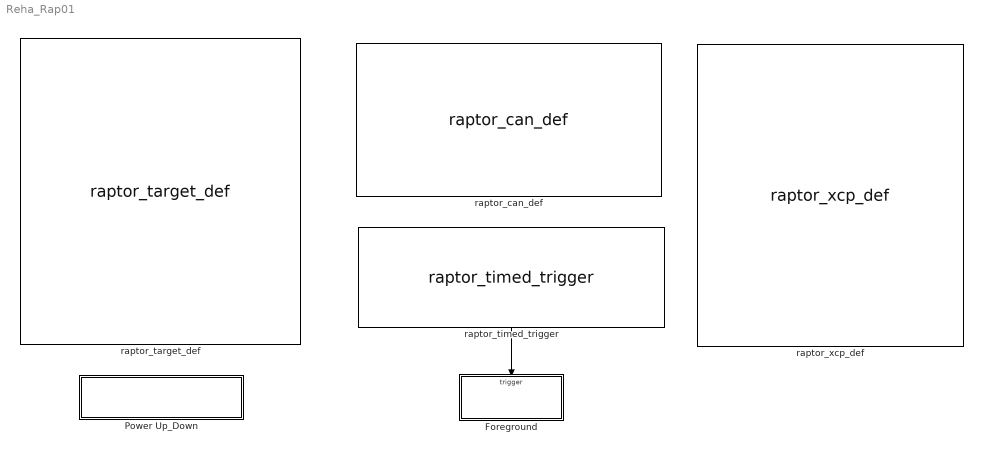
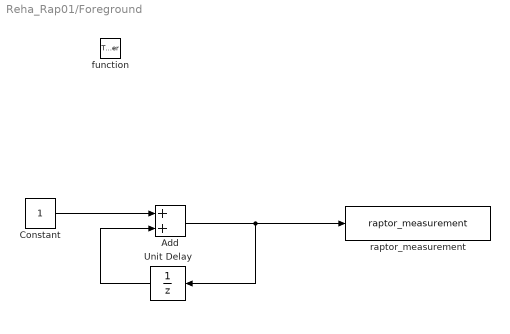
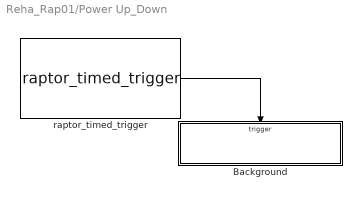
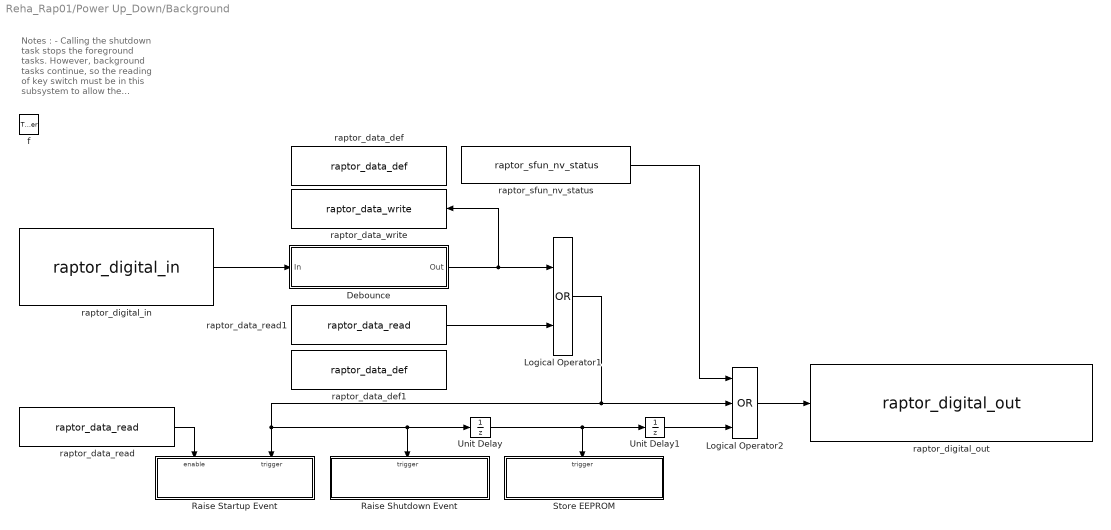
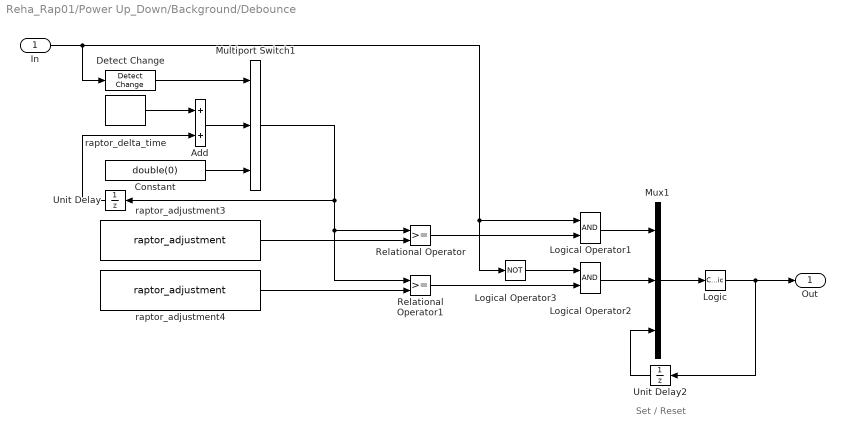
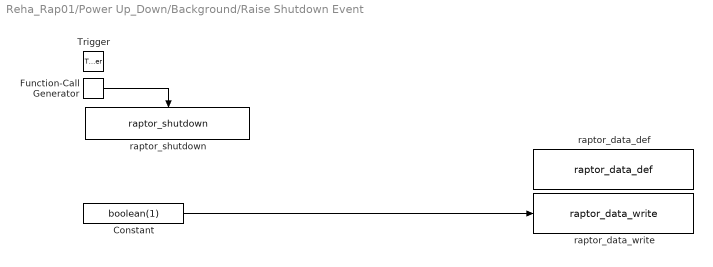
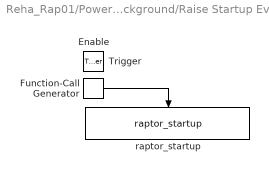
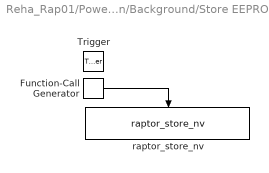
/*
 * File: Reha_Rap01.c
 *
 * Code generated for Simulink model 'Reha_Rap01'.
 *
 * Model version                  : 9.2
 * Simulink Coder version         : 9.6 (R2021b) 14-May-2021
 * C/C++ source code generated on : Thu Sep  8 15:37:03 2022
 *
 * Target selection: raptor.tlc
 * Embedded hardware selection: Infineon->TriCore
 * Emulation hardware selection:
 *    Differs from embedded hardware (MATLAB Host)
 * Code generation objectives: Unspecified
 * Validation result: Not run
 */

#include "Reha_Rap01.h"
#include "Reha_Rap01_private.h"

/* Block states (default storage) */
D_Work_Reha_Rap01 Reha_Rap01_DWork;

/* Previous zero-crossings (trigger) states */
PrevZCSigStates_Reha_Rap01 Reha_Rap01_PrevZCSigState;

/* System initialize for function-call system: '<S2>/Background' */
void Reha_Rap01_Background_Init(void)
{
  /* Start for S-Function (raptor_sfun_digital_in): '<S4>/raptor_digital_in' */

  /* S-Function Block: WAKE_INPUT1 */
  {
  }

  /* Start for S-Function (raptor_sfun_digital_out): '<S4>/raptor_digital_out' */

  /* S-Function Block: POWER_HOLD */
  {
  }

  /* InitializeConditions for S-Function (raptor_sfun_delta_time): '<S5>/raptor_delta_time' */
  Reha_Rap01_DWork.raptor_delta_time_DWORK1 = ticks();

  /* InitializeConditions for UnitDelay: '<S5>/Unit Delay2' */
  Reha_Rap01_DWork.UnitDelay2_DSTATE = true;
}

/* System reset for function-call system: '<S2>/Background' */
void Reha_Rap01_Background_Reset(void)
{
  /* InitializeConditions for S-Function (raptor_sfun_delta_time): '<S5>/raptor_delta_time' */
  Reha_Rap01_DWork.raptor_delta_time_DWORK1 = ticks();

  /* InitializeConditions for UnitDelay: '<S5>/Unit Delay2' */
  Reha_Rap01_DWork.UnitDelay2_DSTATE = true;
}

/* Output and update for function-call system: '<S2>/Background' */
void Reha_Rap01_Background(void)
{
  /* local block i/o variables */
  real_T rtb_raptor_delta_time;
  boolean_T rtb_raptor_digital_in;
  boolean_T rtb_raptor_sfun_nv_status;
  real_T rtb_MultiportSwitch1;
  boolean_T rtb_Logic;
  boolean_T rtb_LogicalOperator1_h;
  boolean_T rtb_LogicalOperator2;
  boolean_T rtb_LogicalOperator2_c;

  /* S-Function (raptor_sfun_digital_in): '<S4>/raptor_digital_in' */
  /* S-Function Block: WAKE_INPUT1 */
  {
    rtb_raptor_digital_in = swsh_ignswSt();
  }

  /* S-Function (raptor_sfun_delta_time): '<S5>/raptor_delta_time' */
  {
    rtb_raptor_delta_time = (GetDeltaTime_ms
      (&Reha_Rap01_DWork.raptor_delta_time_DWORK1) * 0.001f);
  }

  /* MultiPortSwitch: '<S5>/Multiport Switch1' incorporates:
   *  Constant: '<S5>/Constant'
   *  RelationalOperator: '<S9>/FixPt Relational Operator'
   *  Sum: '<S5>/Add'
   *  UnitDelay: '<S5>/Unit Delay'
   *  UnitDelay: '<S9>/Delay Input1'
   */
  if (rtb_raptor_digital_in == Reha_Rap01_DWork.DelayInput1_DSTATE) {
    rtb_MultiportSwitch1 = rtb_raptor_delta_time +
      Reha_Rap01_DWork.UnitDelay_DSTATE_b;
  } else {
    rtb_MultiportSwitch1 = 0.0;
  }

  /* End of MultiPortSwitch: '<S5>/Multiport Switch1' */
  /* S-Function (raptor_sfun_nv_status): '<S4>/raptor_sfun_nv_status' incorporates:
   *  UnitDelay: '<S5>/Unit Delay2'
   */
  rtb_raptor_sfun_nv_status = Reha_Rap01_DWork.UnitDelay2_DSTATE;

  /* CombinatorialLogic: '<S5>/Logic' incorporates:
   *  Logic: '<S5>/Logical Operator1'
   *  Logic: '<S5>/Logical Operator2'
   *  Logic: '<S5>/Logical Operator3'
   *  RelationalOperator: '<S5>/Relational Operator'
   *  RelationalOperator: '<S5>/Relational Operator1'
   *  S-Function (raptor_sfun_adjustment): '<S5>/raptor_adjustment3'
   *  S-Function (raptor_sfun_adjustment): '<S5>/raptor_adjustment4'
   */
  rtb_Logic = Reha_Rap01_ConstP.Logic_table[((((uint32_T)(rtb_raptor_digital_in &&
    (rtb_MultiportSwitch1 >= (KeySwHiTimeThr_Data()))) << 1) +
    ((!rtb_raptor_digital_in) && (rtb_MultiportSwitch1 >= (KeySwLoTimeThr_Data()))))
    << 1) + rtb_raptor_sfun_nv_status];

  /* Logic: '<S4>/Logical Operator1' incorporates:
   *  S-Function (raptor_sfun_data_read): '<S4>/raptor_data_read1'
   */
  rtb_LogicalOperator1_h = (rtb_Logic || KeepModuleOn_Data());

  /* Outputs for Triggered SubSystem: '<S4>/Raise Shutdown Event' incorporates:
   *  TriggerPort: '<S6>/Trigger'
   */
  if ((!rtb_LogicalOperator1_h) &&
      (Reha_Rap01_PrevZCSigState.RaiseShutdownEvent_Trig_ZCE != ZERO_ZCSIG)) {
    /* S-Function (raptor_sfun_data_write): '<S6>/raptor_data_write' incorporates:
     *  Constant: '<S6>/Constant'
     */
    FgndTasksStopped_Data() = true;

    /* S-Function (fcgen): '<S6>/Function-Call Generator' incorporates:
     *  SubSystem: '<S6>/raptor_shutdown'
     */
    /* S-Function (raptor_sfun_shutdown): '<S10>/raptor_data_write' */
    /* S-Function Block */
    {
      extern void App_Shutdown(void);
      App_Shutdown();
    }

    /* End of Outputs for S-Function (fcgen): '<S6>/Function-Call Generator' */
  }

  Reha_Rap01_PrevZCSigState.RaiseShutdownEvent_Trig_ZCE = rtb_LogicalOperator1_h;

  /* End of Outputs for SubSystem: '<S4>/Raise Shutdown Event' */
  /* Outputs for Enabled and Triggered SubSystem: '<S4>/Raise Startup Event' incorporates:
   *  EnablePort: '<S7>/Enable'
   *  TriggerPort: '<S7>/Trigger'
   */
  if (FgndTasksStopped_Data()) {
    if (rtb_LogicalOperator1_h &&
        (Reha_Rap01_PrevZCSigState.RaiseStartupEvent_Trig_ZCE != POS_ZCSIG)) {
      /* S-Function (fcgen): '<S7>/Function-Call Generator' incorporates:
       *  SubSystem: '<S7>/raptor_startup'
       */
      /* S-Function (raptor_sfun_startup): '<S11>/raptor_data_write' */
      /* S-Function Block */
      {
        extern void App_Startup(void);
        App_Startup();
      }

      /* End of Outputs for S-Function (fcgen): '<S7>/Function-Call Generator' */
    }

    /* Outputs for Triggered SubSystem: '<S4>/Raise Shutdown Event' incorporates:
     *  TriggerPort: '<S6>/Trigger'
     */
    Reha_Rap01_PrevZCSigState.RaiseStartupEvent_Trig_ZCE =
      rtb_LogicalOperator1_h;

    /* End of Outputs for SubSystem: '<S4>/Raise Shutdown Event' */
  }

  /* End of S-Function (raptor_sfun_data_read): '<S4>/raptor_data_read' */

  /* Outputs for Triggered SubSystem: '<S4>/Raise Shutdown Event' incorporates:
   *  TriggerPort: '<S6>/Trigger'
   */
  Reha_Rap01_PrevZCSigState.RaiseStartupEvent_Trig_ZCE = rtb_LogicalOperator1_h;

  /* End of Outputs for SubSystem: '<S4>/Raise Shutdown Event' */
  /* End of Outputs for SubSystem: '<S4>/Raise Startup Event' */

  /* UnitDelay: '<S4>/Unit Delay' */
  rtb_LogicalOperator2_c = Reha_Rap01_DWork.UnitDelay_DSTATE_e;

  /* Outputs for Triggered SubSystem: '<S4>/Store EEPROM' incorporates:
   *  TriggerPort: '<S8>/Trigger'
   */
  if ((!Reha_Rap01_DWork.UnitDelay_DSTATE_e) &&
      (Reha_Rap01_PrevZCSigState.StoreEEPROM_Trig_ZCE != ZERO_ZCSIG)) {
    /* S-Function (fcgen): '<S8>/Function-Call Generator' incorporates:
     *  SubSystem: '<S8>/raptor_store_nv'
     */
    /* S-Function (raptor_sfun_store_nv): '<S12>/raptor_data_write' */
    /* S-Function Block */
    {
      App_EE_Store();
    }

    /* End of Outputs for S-Function (fcgen): '<S8>/Function-Call Generator' */
  }

  /* End of UnitDelay: '<S4>/Unit Delay' */
  Reha_Rap01_PrevZCSigState.StoreEEPROM_Trig_ZCE = rtb_LogicalOperator2_c;

  /* End of Outputs for SubSystem: '<S4>/Store EEPROM' */

  /* S-Function (raptor_sfun_data_write): '<S4>/raptor_data_write' */
  KeySw_Bgnd_Data() = rtb_Logic;

  /* S-Function (raptor_sfun_nv_status): '<S4>/raptor_sfun_nv_status' */
  /* S-Function Block */
  {
    rtb_raptor_sfun_nv_status = (EEPROM_State_Data() == EE_STORE_IN_PROGESS);
  }

  /* Logic: '<S4>/Logical Operator2' incorporates:
   *  UnitDelay: '<S4>/Unit Delay1'
   */
  rtb_LogicalOperator2 = (rtb_raptor_sfun_nv_status || rtb_LogicalOperator1_h ||
    Reha_Rap01_DWork.UnitDelay1_DSTATE);

  /* S-Function (raptor_sfun_digital_out): '<S4>/raptor_digital_out' */
  /* S-Function Block: POWER_HOLD */
  {
    {
      if (rtb_LogicalOperator2 && !swsh_ignswSt()) {
        SyC_WaitPostDrv();
      }
    }
  }

  /* Update for UnitDelay: '<S9>/Delay Input1' */
  Reha_Rap01_DWork.DelayInput1_DSTATE = rtb_raptor_digital_in;

  /* Update for UnitDelay: '<S5>/Unit Delay' */
  Reha_Rap01_DWork.UnitDelay_DSTATE_b = rtb_MultiportSwitch1;

  /* Update for UnitDelay: '<S5>/Unit Delay2' */
  Reha_Rap01_DWork.UnitDelay2_DSTATE = rtb_Logic;

  /* Update for UnitDelay: '<S4>/Unit Delay' */
  Reha_Rap01_DWork.UnitDelay_DSTATE_e = rtb_LogicalOperator1_h;

  /* Update for UnitDelay: '<S4>/Unit Delay1' */
  Reha_Rap01_DWork.UnitDelay1_DSTATE = rtb_LogicalOperator2_c;
}

/* Output and update for function-call system: '<Root>/Foreground' */
void Reha_Rap01_Foreground(void)
{
  real_T rtb_Add_j;

  /* Sum: '<S1>/Add' incorporates:
   *  Constant: '<S1>/Constant'
   *  UnitDelay: '<S1>/Unit Delay'
   */
  rtb_Add_j = Reha_Rap01_DWork.UnitDelay_DSTATE + 1.0;

  /* S-Function (raptor_sfun_measurement): '<S1>/raptor_measurement' */
  Counter_Data() = rtb_Add_j;

  /* Update for UnitDelay: '<S1>/Unit Delay' */
  Reha_Rap01_DWork.UnitDelay_DSTATE = rtb_Add_j;
}

/* Model step function */
void Reha_Rap01_step(void)
{
  /* S-Function (raptor_sfun_target_def): '<Root>/raptor_target_def' */

  /*
   * New Eagle LLC 2011
   */
}
